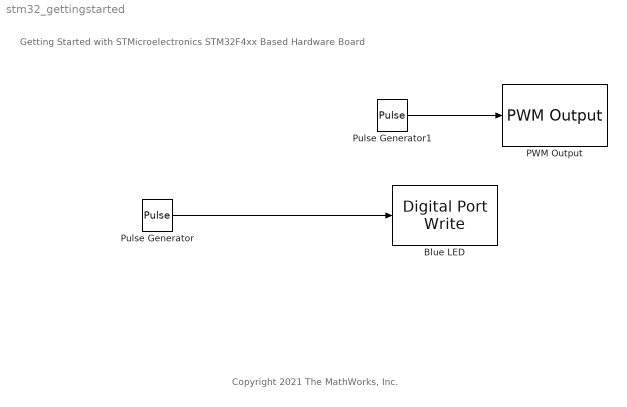
/*
 * Academic License - for use in teaching, academic research, and meeting
 * course requirements at degree granting institutions only.  Not for
 * government, commercial, or other organizational use.
 *
 * File: stm32_gettingstarted.c
 *
 * Code generated for Simulink model 'stm32_gettingstarted'.
 *
 * Model version                  : 4.3
 * Simulink Coder version         : 9.9 (R2023a) 19-Nov-2022
 * C/C++ source code generated on : Fri Nov 22 22:50:28 2024
 *
 * Target selection: ert.tlc
 * Embedded hardware selection: ARM Compatible->ARM Cortex
 * Code generation objectives: Unspecified
 * Validation result: Not run
 */

#include "stm32_gettingstarted.h"
#include "stm32_gettingstarted_types.h"
#include "rtwtypes.h"
#include "stm_timer_ll.h"

/* Block states (default storage) */
DW_stm32_gettingstarted_T stm32_gettingstarted_DW;

/* Real-time model */
static RT_MODEL_stm32_gettingstarted_T stm32_gettingstarted_M_;
RT_MODEL_stm32_gettingstarted_T *const stm32_gettingstarted_M =
  &stm32_gettingstarted_M_;

/* Forward declaration for local functions */
static void stm32_gettings_SystemCore_setup(stm32cube_blocks_PWMOutput_st_T *obj);
static void stm32_gettings_SystemCore_setup(stm32cube_blocks_PWMOutput_st_T *obj)
{
  uint8_T ChannelInfo;
  TIM_Type_T b;
  boolean_T isSlaveModeTriggerEnabled;
  obj->isInitialized = 1;
  b.PeripheralPtr = TIM1;
  b.isCenterAlignedMode = false;
  b.repetitionCounter = 0U;
  obj->TimerHandle = Timer_Handle_Init(&b);
  enableTimerInterrupts(obj->TimerHandle, 0);
  ChannelInfo = ENABLE_CH;
  enableTimerChannel1(obj->TimerHandle, ChannelInfo);
  isSlaveModeTriggerEnabled = isSlaveTriggerModeEnabled(obj->TimerHandle);
  if (!isSlaveModeTriggerEnabled) {
    enableCounter(obj->TimerHandle, false);
  }

  obj->isSetupComplete = true;
}

/* Model step function */
void stm32_gettingstarted_step(void)
{
  GPIO_TypeDef * portNameLoc;
  real_T rtb_PulseGenerator;
  int32_T pinWriteLoc;

  /* DiscretePulseGenerator: '<Root>/Pulse Generator' */
  rtb_PulseGenerator = (stm32_gettingstarted_DW.clockTickCounter <
                        stm32_gettingstarted_P.PulseGenerator_Duty) &&
    (stm32_gettingstarted_DW.clockTickCounter >= 0) ?
    stm32_gettingstarted_P.PulseGenerator_Amp : 0.0;
  if (stm32_gettingstarted_DW.clockTickCounter >=
      stm32_gettingstarted_P.PulseGenerator_Period - 1.0) {
    stm32_gettingstarted_DW.clockTickCounter = 0;
  } else {
    stm32_gettingstarted_DW.clockTickCounter++;
  }

  /* End of DiscretePulseGenerator: '<Root>/Pulse Generator' */

  /* MATLABSystem: '<S4>/Digital Port Write' */
  portNameLoc = GPIOB;
  if (rtb_PulseGenerator != 0.0) {
    pinWriteLoc = 128;
  } else {
    pinWriteLoc = 0;
  }

  LL_GPIO_SetOutputPin(portNameLoc, (uint32_T)pinWriteLoc);
  LL_GPIO_ResetOutputPin(portNameLoc, ~(uint32_T)pinWriteLoc & 128U);

  /* End of MATLABSystem: '<S4>/Digital Port Write' */

  /* DiscretePulseGenerator: '<Root>/Pulse Generator1' */
  rtb_PulseGenerator = (stm32_gettingstarted_DW.clockTickCounter_b <
                        stm32_gettingstarted_P.PulseGenerator1_Duty) &&
    (stm32_gettingstarted_DW.clockTickCounter_b >= 0) ?
    stm32_gettingstarted_P.PulseGenerator1_Amp : 0.0;
  if (stm32_gettingstarted_DW.clockTickCounter_b >=
      stm32_gettingstarted_P.PulseGenerator1_Period - 1.0) {
    stm32_gettingstarted_DW.clockTickCounter_b = 0;
  } else {
    stm32_gettingstarted_DW.clockTickCounter_b++;
  }

  /* End of DiscretePulseGenerator: '<Root>/Pulse Generator1' */

  /* MATLABSystem: '<S6>/PWM Output' */
  setDutyCycleInPercentageChannel1(stm32_gettingstarted_DW.obj.TimerHandle,
    rtb_PulseGenerator);
}
